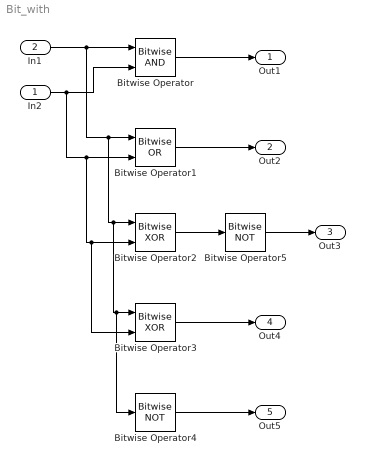
/*
 * File: Bit_with.c
 *
 * Code generated for Simulink model 'Bit_with'.
 *
 * Model version                  : 1.3
 * Simulink Coder version         : 8.10 (R2016a) 10-Feb-2016
 * C/C++ source code generated on : Sat Apr 02 16:17:38 2022
 *
 * Target selection: ert.tlc
 * Embedded hardware selection: Intel->x86-64 (Windows64)
 * Code generation objectives: Unspecified
 * Validation result: Not run
 */

#include "Bit_with.h"
#include "Bit_with_private.h"

/* External inputs (root inport signals with auto storage) */
ExtU_Bit_with_T Bit_with_U;

/* External outputs (root outports fed by signals with auto storage) */
ExtY_Bit_with_T Bit_with_Y;

/* Real-time model */
RT_MODEL_Bit_with_T Bit_with_M_;
RT_MODEL_Bit_with_T *const Bit_with_M = &Bit_with_M_;

/* Model step function */
void Bit_with_step(void)
{
  /* Outport: '<Root>/Out1' incorporates:
   *  Inport: '<Root>/In1'
   *  Inport: '<Root>/In2'
   *  S-Function (sfix_bitop): '<Root>/Bitwise Operator'
   */
  Bit_with_Y.Out1 = (Bit_with_U.In1 && Bit_with_U.In2);

  /* Outport: '<Root>/Out2' incorporates:
   *  Inport: '<Root>/In1'
   *  Inport: '<Root>/In2'
   *  S-Function (sfix_bitop): '<Root>/Bitwise Operator1'
   */
  Bit_with_Y.Out2 = (Bit_with_U.In1 || Bit_with_U.In2);

  /* Outport: '<Root>/Out3' incorporates:
   *  Inport: '<Root>/In1'
   *  Inport: '<Root>/In2'
   *  S-Function (sfix_bitop): '<Root>/Bitwise Operator2'
   *  S-Function (sfix_bitop): '<Root>/Bitwise Operator5'
   */
  Bit_with_Y.Out3 = !(boolean_T)(Bit_with_U.In1 ^ Bit_with_U.In2);

  /* Outport: '<Root>/Out4' incorporates:
   *  Inport: '<Root>/In1'
   *  Inport: '<Root>/In2'
   *  S-Function (sfix_bitop): '<Root>/Bitwise Operator3'
   */
  Bit_with_Y.Out4 = Bit_with_U.In1 ^ Bit_with_U.In2;

  /* Outport: '<Root>/Out5' incorporates:
   *  Inport: '<Root>/In1'
   *  S-Function (sfix_bitop): '<Root>/Bitwise Operator4'
   */
  Bit_with_Y.Out5 = !Bit_with_U.In1;
}
